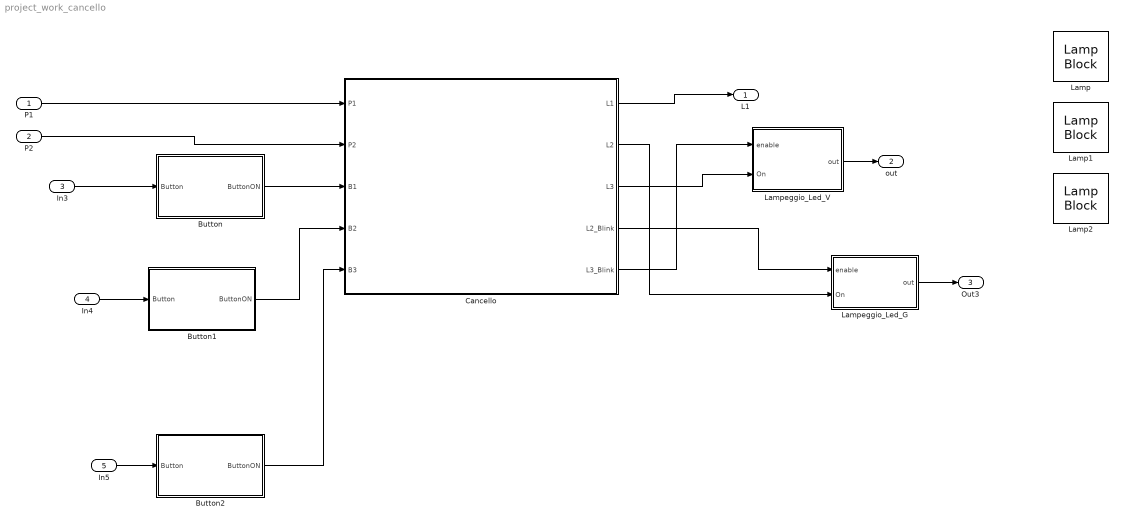
== stateflow chart project_work_cancello/Button ==
  state Wait
    en:ButtonON=Released
  state Pressed
  state LongPressed
    en: ButtonON=Pressed
  (default) -> Wait
  Wait -> Pressed : [Button==Pressed]
  LongPressed -> Wait : [Button==Released]
  Pressed -> LongPressed : [Button==Released]
  data: Button input boolean; ButtonON output boolean; Pressed constant boolean =true; Released constant boolean =false

== stateflow chart project_work_cancello/Button1 ==
  state Wait
    en:ButtonON=Released
  state Pressed
  state LongPressed
    en: ButtonON=Pressed
  (default) -> Wait
  Wait -> Pressed : [Button==Pressed]
  LongPressed -> Wait : [Button==Released]
  Pressed -> LongPressed : [Button==Released]
  data: Button input boolean; ButtonON output boolean; Pressed constant boolean =true; Released constant boolean =false

== stateflow chart project_work_cancello/Cancello ==
  state Cancello [parallel]
    state Check
      en: L1=OFF; L2=OFF; L3=OFF;L2_Blink=OFF;L3_Blink=OFF
    state Error
      state Wait1
      state ERR
        en: L1=ON
        ex: L1=OFF
      (default) -> Wait1
      Wait1 -> ERR : [after(10,sec)]
    state Close
      state Closing
        en:L2_Blink=ON; Start_T_L_C=ON;
        ex:Start_T_L_C=OFF; L2_Blink=OFF;
      state Closed
      (default) -> Closing
      Closing -> Closed : [T_L==ON && P2 == true]
    state Open
      state Opening
        en: Start_T_L_O=ON;L2_Blink=ON;
        ex:L2_Blink=OFF,Start_T_L_O=OFF
      state Opened
        en:L1=ON; L2=ON; L3=ON; Start_T_C=ON;
        du: Reset();
        ex: L1=OFF; L2=OFF; L3=OFF; Start_T_C=OFF;
      (default) -> Opening
      Opening -> Opened : [T_L == ON]
    (default) -> Check
    Check -> Open [order 2] : [B1 == ON && P1 == OFF || P1 == ON && P2 == OFF]
    Close -> Error [order 2] : [T_L==ON&&P2==false]
    Check -> Close [order 1] : [P1 == OFF && P2 == OFF]
    Close -> Open [order 1] : [B1 == ON && P1 == false || in(Close.Closing) && P1==true]
    Error -> Closed : [P2==true]
    Open -> Close : [(B1 == ON || T_C == true) && P1==false]
  state Timer_T_L_O [parallel]
    state Counting
      state Count1
      state End
        en: T_L = ON
      (default) -> Timer_T_L_O.Counting.Count1
      Timer_T_L_O.Counting.Count1 -> Timer_T_L_O.Counting.End [order 1] : [after(Time_T_L,sec)]
      Timer_T_L_O.Counting.Count1 -> Timer_T_L_O.Counting.Count1 [order 2] : [RESET == ON]
    state off
      en: T_L =OFF
    (default) -> Timer_T_L_O.off
    Timer_T_L_O.off -> Timer_T_L_O.Counting : [Start_T_L_O == ON]
    Timer_T_L_O.Counting -> Timer_T_L_O.off : [Start_T_L_O == OFF]
  state Timer_T_L_C [parallel]
    state Counting
      state Count1
      state End
        en: T_L = ON
      (default) -> Timer_T_L_C.Counting.Count1
      Timer_T_L_C.Counting.Count1 -> Timer_T_L_C.Counting.End : [after(Time_T_L,sec)]
    state off
      en: T_L =OFF
    (default) -> Timer_T_L_C.off
    Timer_T_L_C.off -> Timer_T_L_C.Counting : [Start_T_L_C == ON]
    Timer_T_L_C.Counting -> Timer_T_L_C.off : [Start_T_L_C == OFF]
  state Reset [function]
    (default) -> (junction 65)
    (junction 65) -> (junction 68) [order 1] : [P1==true]
    (junction 68) -> (junction 73) : {RESET=true;}
    (junction 65) -> (junction 71) [order 2] : [P1==false]
    (junction 71) -> (junction 73) : {RESET=false;}
  state Update_Time_T_L [function]
    (default) -> (junction 97)
    (junction 97) -> (junction 99) [order 1] : [Time_T_L < 120]
    (junction 99) -> (junction 107) : {Time_T_L=Time_T_L+10}
    (junction 97) -> (junction 103) [order 2] : [Time_T_L >= 120]
    (junction 103) -> (junction 107) : {Time_T_L = 10}
  state Timet_T_C [parallel]
    state Counting
      state Count1
      state End
        en: T_C = ON
      (default) -> Timet_T_C.Counting.Count1
      Timet_T_C.Counting.Count1 -> Timet_T_C.Counting.End [order 1] : [after(Time_T_C,sec)]
      Timet_T_C.Counting.Count1 -> Timet_T_C.Counting.Count1 [order 2] : [RESET == ON]
    state off
      en: T_C =OFF
    (default) -> Timet_T_C.off
    Timet_T_C.off -> Timet_T_C.Counting : [Start_T_C == ON]
    Timet_T_C.Counting -> Timet_T_C.off : [Start_T_C == OFF]
  state Update_Time_T_C [function]
    (default) -> (junction 114)
    (junction 114) -> (junction 116) [order 1] : [Time_T_C < 120]
    (junction 116) -> (junction 120) : {Time_T_C=Time_T_C + 10}
    (junction 114) -> (junction 118) [order 2] : [Time_T_C >= 120]
    (junction 118) -> (junction 120) : {Time_T_C = 10}
  state Obstacle [parallel]
    state Wait
    state OBS
      en: L3_Blink=ON;Start_T_LV=ON
      du: Reset_LV()
      ex:L3_Blink=OFF;Start_T_LV=OFF
    (default) -> Wait
    Wait -> OBS : [(in(Cancello.Close.Closed) || in(Cancello.Open.Opened) || in(Cancello.Check)) && B1==ON &&P1==true]
    OBS -> Wait : [P1==false || T_LV==ON ]
  state Update [parallel]
    state Update_TC [parallel]
      state Update_T_C
      state UP_TC
        en: Update_Time_T_C()
      (default) -> Update_T_C
      UP_TC -> Update_T_C
      Update_T_C -> UP_TC : [(in(Cancello.Close.Closed)||in(Cancello.Check)) && B3 == ON]
    state Update_TL [parallel]
      state Update_T_L
      state UP_TL
        en: Update_Time_T_L()
      (default) -> Update_T_L
      UP_TL -> Update_T_L
      Update_T_L -> UP_TL : [(in(Cancello.Close.Closed) || in(Cancello.Check)) && B2==ON]
  state Timer_LV [parallel]
    state Counting
      state Count1
      state End
        en: T_LV = ON
      (default) -> Timer_LV.Counting.Count1
      Timer_LV.Counting.Count1 -> Timer_LV.Counting.End [order 1] : [after(30,sec)]
      Timer_LV.Counting.Count1 -> Timer_LV.Counting.Count1 [order 2] : [RESET_LV==true]
    state off
      en: T_LV =OFF
    (default) -> Timer_LV.off
    Timer_LV.off -> Timer_LV.Counting : [Start_T_LV == ON]
    Timer_LV.Counting -> Timer_LV.off : [Start_T_LV == OFF]
  state Reset_LV [function]
    (default) -> (junction 81)
    (junction 81) -> (junction 83) [order 1] : [B1==ON]
    (junction 81) -> (junction 89) [order 2] : [B1==OFF]
    (junction 83) -> (junction 87) : {RESET_LV=true}
    (junction 89) -> (junction 87) : {RESET_LV=false}
  data: L1 output boolean; L2 output boolean; L3 output boolean; OFF constant boolean =false; P1 input boolean; P2 input boolean; ON constant boolean =true; B1 input boolean; Time_T_C local int32 =10; Time_T_L local int32 =10; L2_Blink output boolean; L3_Blink output boolean; B2 input boolean; B3 input boolean; RESET local boolean; Start_T_C local boolean; Start_T_L_O local boolean; T_L local boolean; T_C local boolean; T_LV local boolean; RESET_LV local boolean; Start_T_LV local boolean; Start_T_L_C local boolean

== stateflow chart project_work_cancello/Lampeggio_Led_G ==
  state blink
    state blink_on
      en: out = ACTIVE
    state blink_off
      en: out = DISACTIVE
    (default) -> blink_on
    blink_off -> blink_on : after(period, msec)
    blink_on -> blink_off : after(period, msec)
  state off
    en: out = DISACTIVE;
  state on
    en: out=ACTIVE
  (default) -> off
  off -> blink [order 1] : [enable == ACTIVE]
  off -> on [order 2] : [On==ACTIVE]
  blink -> off : [enable == DISACTIVE]
  on -> off : [On==DISACTIVE]
  data: enable input boolean; out output boolean; ACTIVE constant boolean =true; DISACTIVE constant boolean =false; period constant double =2000; On input boolean

== stateflow chart project_work_cancello/Lampeggio_Led_V ==
  state blink
    state blink_on
      en: out = ACTIVE
    state blink_off
      en: out = DISACTIVE
    (default) -> blink_on
    blink_off -> blink_on : after(period, msec)
    blink_on -> blink_off : after(period, msec)
  state off
    en: out = DISACTIVE;
  state on
    en:out = ACTIVE
  (default) -> off
  off -> blink [order 1] : [enable == ACTIVE]
  off -> on [order 2] : [On==ACTIVE]
  blink -> off [order 1] : [enable == DISACTIVE]
  on -> off [order 1] : [On == DISACTIVE]
  blink -> on [order 2] : [enable == DISACTIVE && On == ACTIVE]
  on -> blink [order 2] : [enable == ACTIVE]
  data: enable input boolean; out output boolean; ACTIVE constant boolean =true; DISACTIVE constant boolean =false; period constant double =1000; On input boolean

== stateflow chart project_work_cancello/Button2 ==
  state Wait
    en:ButtonON=Released
  state Pressed
  state LongPressed
    en: ButtonON=Pressed
  (default) -> Wait
  Wait -> Pressed : [Button==Pressed]
  LongPressed -> Wait : [Button==Released]
  Pressed -> LongPressed : [Button==Released]
  data: Button input boolean; ButtonON output boolean; Pressed constant boolean =true; Released constant boolean =false

/*
 * Academic License - for use in teaching, academic research, and meeting
 * course requirements at degree granting institutions only.  Not for
 * government, commercial, or other organizational use.
 *
 * File: project_work_cancello.c
 *
 * Code generated for Simulink model 'project_work_cancello'.
 *
 * Model version                  : 3.22
 * Simulink Coder version         : 9.8 (R2022b) 13-May-2022
 * C/C++ source code generated on : Thu Jun  6 10:07:43 2024
 *
 * Target selection: ert.tlc
 * Embedded hardware selection: ARM Compatible->ARM Cortex-M
 * Code generation objectives:
 *    1. Execution efficiency
 *    2. RAM efficiency
 * Validation result: Not run
 */

#include "project_work_cancello.h"
#include "rtwtypes.h"

/* Named constants for Chart: '<Root>/Button' */
#define IN_LongPressed                 ((uint8_T)1U)
#define IN_Pressed                     ((uint8_T)2U)
#define IN_Wait                        ((uint8_T)3U)
#define Pressed                        (true)
#define Released                       (false)

/* Named constants for Chart: '<Root>/Cancello' */
#define IN_Check                       ((uint8_T)1U)
#define IN_Close                       ((uint8_T)2U)
#define IN_Closed                      ((uint8_T)1U)
#define IN_Closing                     ((uint8_T)2U)
#define IN_Count1                      ((uint8_T)1U)
#define IN_Counting                    ((uint8_T)1U)
#define IN_ERR                         ((uint8_T)1U)
#define IN_End                         ((uint8_T)2U)
#define IN_Error                       ((uint8_T)3U)
#define IN_NO_ACTIVE_CHILD             ((uint8_T)0U)
#define IN_OBS                         ((uint8_T)1U)
#define IN_Open                        ((uint8_T)4U)
#define IN_Opened                      ((uint8_T)1U)
#define IN_Opening                     ((uint8_T)2U)
#define IN_UP_TC                       ((uint8_T)1U)
#define IN_UP_TL                       ((uint8_T)1U)
#define IN_Update_T_C                  ((uint8_T)2U)
#define IN_Update_T_L                  ((uint8_T)2U)
#define IN_Wait1                       ((uint8_T)2U)
#define IN_Wait_f                      ((uint8_T)2U)
#define IN_off                         ((uint8_T)2U)
#define OFF                            (false)
#define ON                             (true)

/* Named constants for Chart: '<Root>/Lampeggio_Led_G' */
#define ACTIVE                         (true)
#define DISACTIVE                      (false)
#define IN_blink                       ((uint8_T)1U)
#define IN_blink_off                   ((uint8_T)1U)
#define IN_blink_on                    ((uint8_T)2U)
#define IN_on                          ((uint8_T)3U)

/* Block signals and states (default storage) */
DW rtDW;

/* External inputs (root inport signals with default storage) */
ExtU rtU;

/* External outputs (root outports fed by signals with default storage) */
ExtY rtY;

/* Real-time model */
static RT_MODEL rtM_;
RT_MODEL *const rtM = &rtM_;
static void Button_Init(boolean_T *rty_ButtonON);
static void Button(boolean_T rtu_Button, boolean_T *rty_ButtonON, DW_Button
                   *localDW);

/* Forward declaration for local functions */
static void Reset(void);
static void Reset_LV(void);
static void Update_Time_T_C(void);
static void Update_Time_T_L(void);

/*
 * System initialize for atomic system:
 *    '<Root>/Button'
 *    '<Root>/Button1'
 *    '<Root>/Button2'
 */
static void Button_Init(boolean_T *rty_ButtonON)
{
  *rty_ButtonON = false;
}

/*
 * Output and update for atomic system:
 *    '<Root>/Button'
 *    '<Root>/Button1'
 *    '<Root>/Button2'
 */
static void Button(boolean_T rtu_Button, boolean_T *rty_ButtonON, DW_Button
                   *localDW)
{
  /* Chart: '<Root>/Button' */
  if (localDW->is_active_c1_project_work_cance == 0U) {
    localDW->is_active_c1_project_work_cance = 1U;
    localDW->is_c1_project_work_cancello = IN_Wait;
    *rty_ButtonON = Released;
  } else {
    switch (localDW->is_c1_project_work_cancello) {
     case IN_LongPressed:
      *rty_ButtonON = Pressed;
      if (!rtu_Button) {
        localDW->is_c1_project_work_cancello = IN_Wait;
        *rty_ButtonON = Released;
      }
      break;

     case IN_Pressed:
      if (!rtu_Button) {
        localDW->is_c1_project_work_cancello = IN_LongPressed;
        *rty_ButtonON = Pressed;
      }
      break;

     default:
      /* case IN_Wait: */
      *rty_ButtonON = Released;
      if (rtu_Button) {
        localDW->is_c1_project_work_cancello = IN_Pressed;
      }
      break;
    }
  }

  /* End of Chart: '<Root>/Button' */
}

/* Function for Chart: '<Root>/Cancello' */
static void Reset(void)
{
  /* Inport: '<Root>/P1' */
  rtDW.RESET = rtU.P1;
}

/* Function for Chart: '<Root>/Cancello' */
static void Reset_LV(void)
{
  rtDW.RESET_LV = rtDW.ButtonON_e;
}

/* Function for Chart: '<Root>/Cancello' */
static void Update_Time_T_C(void)
{
  if (rtDW.Time_T_C < 120) {
    rtDW.Time_T_C += 10;
  } else {
    rtDW.Time_T_C = 10;
  }
}

/* Function for Chart: '<Root>/Cancello' */
static void Update_Time_T_L(void)
{
  if (rtDW.Time_T_L < 120) {
    rtDW.Time_T_L += 10;
  } else {
    rtDW.Time_T_L = 10;
  }
}

/* Model step function */
void project_work_cancello_step(void)
{
  int32_T tmp;

  /* Chart: '<Root>/Button' incorporates:
   *  Inport: '<Root>/In3'
   */
  Button(rtU.In3, &rtDW.ButtonON_e, &rtDW.sf_Button);

  /* Chart: '<Root>/Button1' incorporates:
   *  Inport: '<Root>/In4'
   */
  Button(rtU.In4, &rtDW.ButtonON_l, &rtDW.sf_Button1);

  /* Chart: '<Root>/Button2' incorporates:
   *  Inport: '<Root>/In5'
   */
  Button(rtU.In5, &rtDW.ButtonON, &rtDW.sf_Button2);

  /* Chart: '<Root>/Cancello' incorporates:
   *  Inport: '<Root>/P1'
   *  Inport: '<Root>/P2'
   */
  if (rtDW.isNotInit) {
    if (rtDW.temporalCounter_i1_m < 127U) {
      rtDW.temporalCounter_i1_m++;
    }

    if (rtDW.temporalCounter_i2 < MAX_uint32_T) {
      rtDW.temporalCounter_i2++;
    }

    if (rtDW.temporalCounter_i3 < MAX_uint32_T) {
      rtDW.temporalCounter_i3++;
    }

    if (rtDW.temporalCounter_i4 < MAX_uint32_T) {
      rtDW.temporalCounter_i4++;
    }

    if (rtDW.temporalCounter_i5 < 511U) {
      rtDW.temporalCounter_i5++;
    }
  }

  rtDW.isNotInit = true;
  switch (rtDW.is_Cancello) {
   case IN_Check:
    {
      boolean_T tmp_0;
      tmp_0 = !rtU.P2;
      if ((!rtU.P1) && tmp_0) {
        rtDW.is_Cancello = IN_Close;
        rtDW.is_Close = IN_Closing;
        rtDW.L2_Blink = ON;
        rtDW.Start_T_L_C = ON;
      } else if ((rtDW.ButtonON_e && (!rtU.P1)) || (rtU.P1 && tmp_0)) {
        rtDW.is_Cancello = IN_Open;
        rtDW.is_Open = IN_Opening;
        rtDW.Start_T_L_O = ON;
        rtDW.L2_Blink = ON;
      }
    }
    break;

   case IN_Close:
    if ((rtDW.ButtonON_e && (!rtU.P1)) || ((rtDW.is_Close == IN_Closing) &&
         rtU.P1)) {
      if (rtDW.is_Close == IN_Closing) {
        rtDW.Start_T_L_C = OFF;
        rtDW.is_Close = IN_NO_ACTIVE_CHILD;
      } else {
        rtDW.is_Close = IN_NO_ACTIVE_CHILD;
      }

      rtDW.is_Cancello = IN_Open;
      rtDW.is_Open = IN_Opening;
      rtDW.Start_T_L_O = ON;
      rtDW.L2_Blink = ON;
    } else if (rtDW.T_L && (!rtU.P2)) {
      if (rtDW.is_Close == IN_Closing) {
        rtDW.Start_T_L_C = OFF;
        rtDW.L2_Blink = OFF;
        rtDW.is_Close = IN_NO_ACTIVE_CHILD;
      } else {
        rtDW.is_Close = IN_NO_ACTIVE_CHILD;
      }

      rtDW.is_Cancello = IN_Error;
      rtDW.is_Error = IN_Wait1;
      rtDW.temporalCounter_i1_m = 0U;
    } else {
      switch (rtDW.is_Close) {
       case IN_Closed:
        break;

       default:
        /* case IN_Closing: */
        if (rtDW.T_L && rtU.P2) {
          rtDW.Start_T_L_C = OFF;
          rtDW.L2_Blink = OFF;
          rtDW.is_Close = IN_Closed;
        }
        break;
      }
    }
    break;

   case IN_Error:
    if (rtU.P2) {
      if (rtDW.is_Error == IN_ERR) {
        /* Outport: '<Root>/L1' */
        rtY.L1 = OFF;
        rtDW.is_Error = IN_NO_ACTIVE_CHILD;
      } else {
        rtDW.is_Error = IN_NO_ACTIVE_CHILD;
      }

      rtDW.is_Cancello = IN_Close;
      rtDW.is_Close = IN_Closed;
    } else {
      switch (rtDW.is_Error) {
       case IN_ERR:
        break;

       default:
        /* case IN_Wait1: */
        if (rtDW.temporalCounter_i1_m >= 100U) {
          rtDW.is_Error = IN_ERR;

          /* Outport: '<Root>/L1' */
          rtY.L1 = ON;
        }
        break;
      }
    }
    break;

   default:
    /* case IN_Open: */
    if ((rtDW.ButtonON_e || rtDW.T_C) && (!rtU.P1)) {
      switch (rtDW.is_Open) {
       case IN_Opened:
        /* Outport: '<Root>/L1' */
        rtY.L1 = OFF;
        rtDW.L2 = OFF;
        rtDW.L3 = OFF;
        rtDW.Start_T_C = OFF;
        rtDW.is_Open = IN_NO_ACTIVE_CHILD;
        break;

       case IN_Opening:
        rtDW.Start_T_L_O = OFF;
        rtDW.is_Open = IN_NO_ACTIVE_CHILD;
        break;
      }

      rtDW.is_Cancello = IN_Close;
      rtDW.is_Close = IN_Closing;
      rtDW.L2_Blink = ON;
      rtDW.Start_T_L_C = ON;
    } else if (rtDW.is_Open == IN_Opened) {
      Reset();

      /* case IN_Opening: */
    } else if (rtDW.T_L) {
      rtDW.L2_Blink = OFF;
      rtDW.Start_T_L_O = OFF;
      rtDW.is_Open = IN_Opened;

      /* Outport: '<Root>/L1' */
      rtY.L1 = ON;
      rtDW.L2 = ON;
      rtDW.L3 = ON;
      rtDW.Start_T_C = ON;
    }
    break;
  }

  if (rtDW.is_Obstacle == IN_OBS) {
    if ((!rtU.P1) || rtDW.T_LV) {
      rtDW.L3_Blink = OFF;
      rtDW.Start_T_LV = OFF;
      rtDW.is_Obstacle = IN_Wait_f;
    } else {
      Reset_LV();
    }

    /* case IN_Wait: */
  } else if (((rtDW.is_Close == IN_Closed) || (rtDW.is_Open == IN_Opened) ||
              (rtDW.is_Cancello == IN_Check)) && rtDW.ButtonON_e && rtU.P1) {
    rtDW.is_Obstacle = IN_OBS;
    rtDW.L3_Blink = ON;
    rtDW.Start_T_LV = ON;
  }

  if (rtDW.is_Update_TC == IN_UP_TC) {
    rtDW.is_Update_TC = IN_Update_T_C;

    /* case IN_Update_T_C: */
  } else if (((rtDW.is_Close == IN_Closed) || (rtDW.is_Cancello == IN_Check)) &&
             rtDW.ButtonON) {
    rtDW.is_Update_TC = IN_UP_TC;
    Update_Time_T_C();
  }

  if (rtDW.is_Update_TL == IN_UP_TL) {
    rtDW.is_Update_TL = IN_Update_T_L;

    /* case IN_Update_T_L: */
  } else if (((rtDW.is_Close == IN_Closed) || (rtDW.is_Cancello == IN_Check)) &&
             rtDW.ButtonON_l) {
    rtDW.is_Update_TL = IN_UP_TL;
    Update_Time_T_L();
  }

  if (rtDW.is_Timer_T_L_C == IN_Counting) {
    if (!rtDW.Start_T_L_C) {
      rtDW.is_Counting_l = IN_NO_ACTIVE_CHILD;
      rtDW.is_Timer_T_L_C = IN_off;
      rtDW.T_L = OFF;
    } else if (rtDW.is_Counting_l == IN_Count1) {
      tmp = rtDW.Time_T_L * 10;
      if (tmp < 0) {
        tmp = 0;
      }

      if (rtDW.temporalCounter_i3 >= (uint32_T)tmp) {
        rtDW.is_Counting_l = IN_End;
        rtDW.T_L = ON;
      }
    } else {
      /* case IN_End: */
    }

    /* case IN_off: */
  } else if (rtDW.Start_T_L_C) {
    rtDW.is_Timer_T_L_C = IN_Counting;
    rtDW.is_Counting_l = IN_Count1;
    rtDW.temporalCounter_i3 = 0U;
  }

  if (rtDW.is_Timet_T_C == IN_Counting) {
    if (!rtDW.Start_T_C) {
      rtDW.is_Counting_b = IN_NO_ACTIVE_CHILD;
      rtDW.is_Timet_T_C = IN_off;
      rtDW.T_C = OFF;
    } else if (rtDW.is_Counting_b == IN_Count1) {
      tmp = rtDW.Time_T_C * 10;
      if (tmp < 0) {
        tmp = 0;
      }

      if (rtDW.temporalCounter_i4 >= (uint32_T)tmp) {
        rtDW.is_Counting_b = IN_End;
        rtDW.T_C = ON;
      } else if (rtDW.RESET) {
        rtDW.temporalCounter_i4 = 0U;
      }
    } else {
      /* case IN_End: */
    }

    /* case IN_off: */
  } else if (rtDW.Start_T_C) {
    rtDW.is_Timet_T_C = IN_Counting;
    rtDW.is_Counting_b = IN_Count1;
    rtDW.temporalCounter_i4 = 0U;
  }

  if (rtDW.is_Timer_LV == IN_Counting) {
    if (!rtDW.Start_T_LV) {
      rtDW.is_Counting_l3 = IN_NO_ACTIVE_CHILD;
      rtDW.is_Timer_LV = IN_off;
      rtDW.T_LV = OFF;
    } else if (rtDW.is_Counting_l3 == IN_Count1) {
      if (rtDW.temporalCounter_i5 >= 300U) {
        rtDW.is_Counting_l3 = IN_End;
        rtDW.T_LV = ON;
      } else if (rtDW.RESET_LV) {
        rtDW.temporalCounter_i5 = 0U;
      }
    } else {
      /* case IN_End: */
    }

    /* case IN_off: */
  } else if (rtDW.Start_T_LV) {
    rtDW.is_Timer_LV = IN_Counting;
    rtDW.is_Counting_l3 = IN_Count1;
    rtDW.temporalCounter_i5 = 0U;
  }

  if (rtDW.is_Timer_T_L_O == IN_Counting) {
    if (!rtDW.Start_T_L_O) {
      rtDW.is_Counting = IN_NO_ACTIVE_CHILD;
      rtDW.is_Timer_T_L_O = IN_off;
      rtDW.T_L = OFF;
    } else if (rtDW.is_Counting == IN_Count1) {
      tmp = rtDW.Time_T_L * 10;
      if (tmp < 0) {
        tmp = 0;
      }

      if (rtDW.temporalCounter_i2 >= (uint32_T)tmp) {
        rtDW.is_Counting = IN_End;
        rtDW.T_L = ON;
      } else if (rtDW.RESET) {
        rtDW.temporalCounter_i2 = 0U;
      }
    } else {
      /* case IN_End: */
    }

    /* case IN_off: */
  } else if (rtDW.Start_T_L_O) {
    rtDW.is_Timer_T_L_O = IN_Counting;
    rtDW.is_Counting = IN_Count1;
    rtDW.temporalCounter_i2 = 0U;
  }

  /* End of Chart: '<Root>/Cancello' */

  /* Chart: '<Root>/Lampeggio_Led_V' */
  if (rtDW.temporalCounter_i1 < 15U) {
    rtDW.temporalCounter_i1++;
  }

  if (rtDW.is_active_c5_project_work_cance == 0U) {
    rtDW.is_active_c5_project_work_cance = 1U;
    rtDW.is_c5_project_work_cancello = IN_off;

    /* Outport: '<Root>/out' */
    rtY.out = DISACTIVE;
  } else {
    switch (rtDW.is_c5_project_work_cancello) {
     case IN_blink:
      if (!rtDW.L3_Blink) {
        rtDW.is_blink = IN_NO_ACTIVE_CHILD;
        rtDW.is_c5_project_work_cancello = IN_off;

        /* Outport: '<Root>/out' */
        rtY.out = DISACTIVE;
      } else if (rtDW.is_blink == IN_blink_off) {
        /* Outport: '<Root>/out' */
        rtY.out = DISACTIVE;
        if (rtDW.temporalCounter_i1 >= 10U) {
          rtDW.is_blink = IN_blink_on;
          rtDW.temporalCounter_i1 = 0U;

          /* Outport: '<Root>/out' */
          rtY.out = ACTIVE;
        }
      } else {
        /* Outport: '<Root>/out' */
        /* case IN_blink_on: */
        rtY.out = ACTIVE;
        if (rtDW.temporalCounter_i1 >= 10U) {
          rtDW.is_blink = IN_blink_off;
          rtDW.temporalCounter_i1 = 0U;

          /* Outport: '<Root>/out' */
          rtY.out = DISACTIVE;
        }
      }
      break;

     case IN_off:
      /* Outport: '<Root>/out' */
      rtY.out = DISACTIVE;
      if (rtDW.L3_Blink) {
        rtDW.is_c5_project_work_cancello = IN_blink;
        rtDW.is_blink = IN_blink_on;
        rtDW.temporalCounter_i1 = 0U;

        /* Outport: '<Root>/out' */
        rtY.out = ACTIVE;
      } else if (rtDW.L3) {
        rtDW.is_c5_project_work_cancello = IN_on;

        /* Outport: '<Root>/out' */
        rtY.out = ACTIVE;
      }
      break;

     default:
      /* Outport: '<Root>/out' */
      /* case IN_on: */
      rtY.out = ACTIVE;
      if (!rtDW.L3) {
        rtDW.is_c5_project_work_cancello = IN_off;

        /* Outport: '<Root>/out' */
        rtY.out = DISACTIVE;
      } else if (rtDW.L3_Blink) {
        rtDW.is_c5_project_work_cancello = IN_blink;
        rtDW.is_blink = IN_blink_on;
        rtDW.temporalCounter_i1 = 0U;
      }
      break;
    }
  }

  /* End of Chart: '<Root>/Lampeggio_Led_V' */

  /* Chart: '<Root>/Lampeggio_Led_G' */
  if (rtDW.temporalCounter_i1_b < 31U) {
    rtDW.temporalCounter_i1_b++;
  }

  if (rtDW.is_active_c4_project_work_cance == 0U) {
    rtDW.is_active_c4_project_work_cance = 1U;
    rtDW.is_c4_project_work_cancello = IN_off;

    /* Outport: '<Root>/Out3' */
    rtY.Out3 = DISACTIVE;
  } else {
    switch (rtDW.is_c4_project_work_cancello) {
     case IN_blink:
      if (!rtDW.L2_Blink) {
        rtDW.is_blink_j = IN_NO_ACTIVE_CHILD;
        rtDW.is_c4_project_work_cancello = IN_off;

        /* Outport: '<Root>/Out3' */
        rtY.Out3 = DISACTIVE;
      } else if (rtDW.is_blink_j == IN_blink_off) {
        /* Outport: '<Root>/Out3' */
        rtY.Out3 = DISACTIVE;
        if (rtDW.temporalCounter_i1_b >= 20U) {
          rtDW.is_blink_j = IN_blink_on;
          rtDW.temporalCounter_i1_b = 0U;

          /* Outport: '<Root>/Out3' */
          rtY.Out3 = ACTIVE;
        }
      } else {
        /* Outport: '<Root>/Out3' */
        /* case IN_blink_on: */
        rtY.Out3 = ACTIVE;
        if (rtDW.temporalCounter_i1_b >= 20U) {
          rtDW.is_blink_j = IN_blink_off;
          rtDW.temporalCounter_i1_b = 0U;

          /* Outport: '<Root>/Out3' */
          rtY.Out3 = DISACTIVE;
        }
      }
      break;

     case IN_off:
      /* Outport: '<Root>/Out3' */
      rtY.Out3 = DISACTIVE;
      if (rtDW.L2_Blink) {
        rtDW.is_c4_project_work_cancello = IN_blink;
        rtDW.is_blink_j = IN_blink_on;
        rtDW.temporalCounter_i1_b = 0U;

        /* Outport: '<Root>/Out3' */
        rtY.Out3 = ACTIVE;
      } else if (rtDW.L2) {
        rtDW.is_c4_project_work_cancello = IN_on;

        /* Outport: '<Root>/Out3' */
        rtY.Out3 = ACTIVE;
      }
      break;

     default:
      /* Outport: '<Root>/Out3' */
      /* case IN_on: */
      rtY.Out3 = ACTIVE;
      if (!rtDW.L2) {
        rtDW.is_c4_project_work_cancello = IN_off;

        /* Outport: '<Root>/Out3' */
        rtY.Out3 = DISACTIVE;
      }
      break;
    }
  }

  /* End of Chart: '<Root>/Lampeggio_Led_G' */
}
